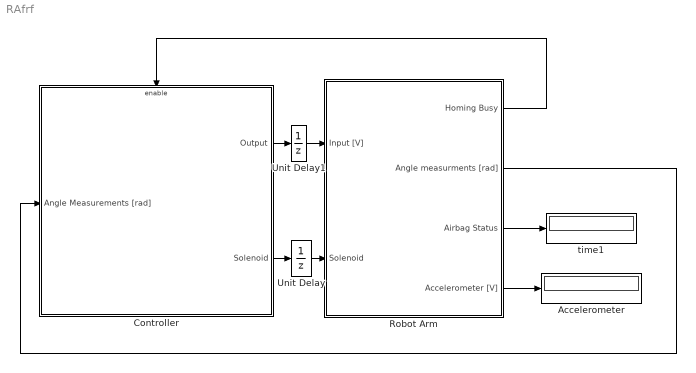
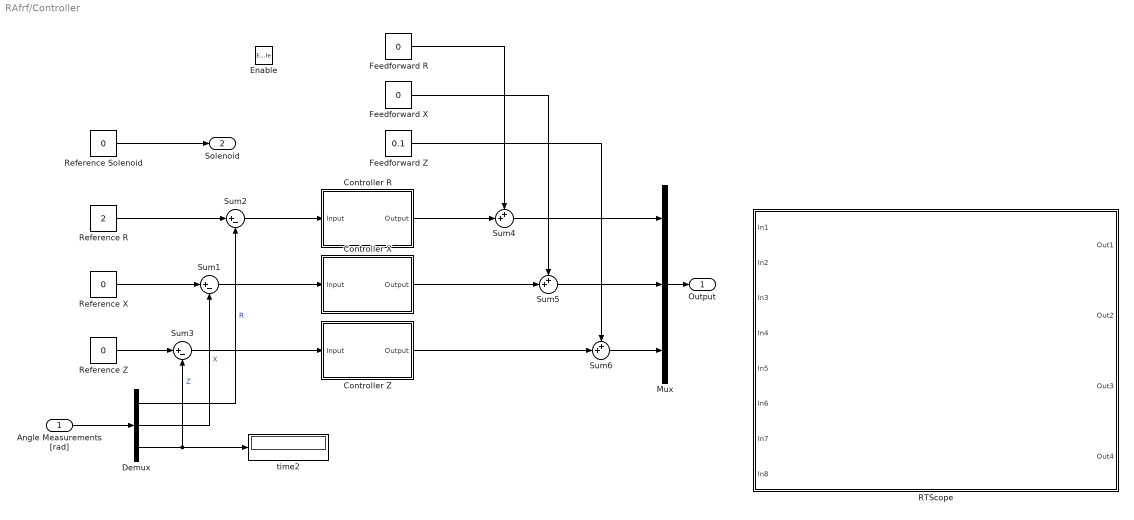
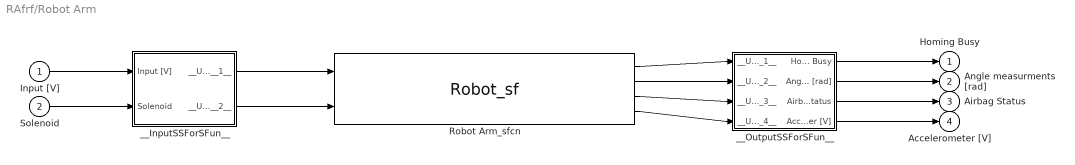
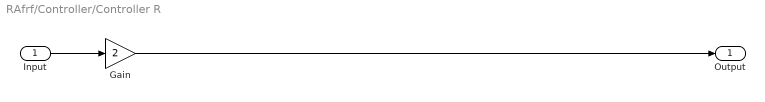
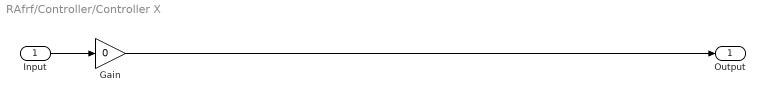
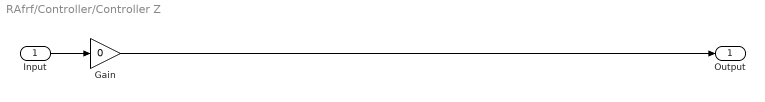
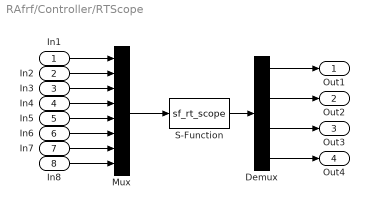
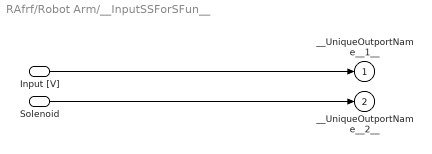
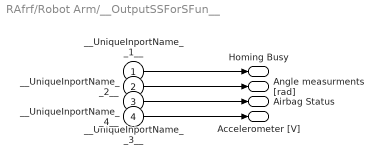
/*
 * RAfrf.c
 *
 * Academic License - for use in teaching, academic research, and meeting
 * course requirements at degree granting institutions only.  Not for
 * government, commercial, or other organizational use.
 *
 * Code generation for model "RAfrf".
 *
 * Model version              : 1.899
 * Simulink Coder version : 8.9 (R2015b) 13-Aug-2015
 * C source code generated on : Tue Mar 29 15:27:11 2016
 *
 * Target selection: ectarget.tlc
 * Note: GRT includes extra infrastructure and instrumentation for prototyping
 * Embedded hardware selection: 32-bit Generic
 * Code generation objectives: Unspecified
 * Validation result: Not run
 */

#include "RAfrf.h"
#include "RAfrf_private.h"
#include "RAfrf_dt.h"
#undef S_FUNCTION_NAME
#if !defined(RTW_GENERATED_SFCN_TUNABLE_PRMS_Robot_sf)
#define RTW_GENERATED_SFCN_TUNABLE_PRMS_Robot_sf
#endif

#include "Robot_sf.h"

const real_T RAfrf_RGND = 0.0;         /* real_T ground */

/* Block signals (auto storage) */
B_RAfrf_T RAfrf_B;

/* Block states (auto storage) */
DW_RAfrf_T RAfrf_DW;

/* Real-time model */
RT_MODEL_RAfrf_T RAfrf_M_;
RT_MODEL_RAfrf_T *const RAfrf_M = &RAfrf_M_;

/* Model output function */
void RAfrf_output(void)
{
  /* Reset subsysRan breadcrumbs */
  srClearBC(RAfrf_DW.Controller_SubsysRanBC);

  /* UnitDelay: '<Root>/Unit Delay1' */
  RAfrf_B.UnitDelay1[0] = RAfrf_DW.UnitDelay1_DSTATE[0];
  RAfrf_B.UnitDelay1[1] = RAfrf_DW.UnitDelay1_DSTATE[1];
  RAfrf_B.UnitDelay1[2] = RAfrf_DW.UnitDelay1_DSTATE[2];

  /* UnitDelay: '<Root>/Unit Delay' */
  RAfrf_B.UnitDelay = RAfrf_DW.UnitDelay_DSTATE;

  /* RTW Generated Level2 S-Function Block: '<S2>/Robot Arm_sfcn' (Robot_sf) */
  {
    SimStruct *rts = RAfrf_M->childSfunctions[1];
    sfcnOutputs(rts, 0);
  }

  /* Outputs for Enabled SubSystem: '<Root>/Controller' incorporates:
   *  EnablePort: '<S1>/Enable'
   */
  if (RAfrf_B.RobotArm_sfcn_o1 > 0.0) {
    if (!RAfrf_DW.Controller_MODE) {
      RAfrf_DW.Controller_MODE = true;
    }
  } else {
    if (RAfrf_DW.Controller_MODE) {
      RAfrf_DW.Controller_MODE = false;
    }
  }

  if (RAfrf_DW.Controller_MODE) {
    /* Sum: '<S1>/Sum4' incorporates:
     *  Constant: '<S1>/Feedforward R'
     *  Constant: '<S1>/Reference R'
     *  Gain: '<S3>/Gain'
     *  Sum: '<S1>/Sum2'
     */
    RAfrf_B.Sum4 = (RAfrf_P.ReferenceR_Value - RAfrf_B.RobotArm_sfcn_o2[0]) *
      RAfrf_P.Gain_Gain + RAfrf_P.FeedforwardR_Value;

    /* Sum: '<S1>/Sum5' incorporates:
     *  Constant: '<S1>/Feedforward X'
     *  Constant: '<S1>/Reference X'
     *  Gain: '<S4>/Gain'
     *  Sum: '<S1>/Sum1'
     */
    RAfrf_B.Sum5 = (RAfrf_P.ReferenceX_Value - RAfrf_B.RobotArm_sfcn_o2[1]) *
      RAfrf_P.Gain_Gain_e + RAfrf_P.FeedforwardX_Value;

    /* Sum: '<S1>/Sum6' incorporates:
     *  Constant: '<S1>/Feedforward Z'
     *  Constant: '<S1>/Reference Z'
     *  Gain: '<S5>/Gain'
     *  Sum: '<S1>/Sum3'
     */
    RAfrf_B.Sum6 = (RAfrf_P.ReferenceZ_Value - RAfrf_B.RobotArm_sfcn_o2[2]) *
      RAfrf_P.Gain_Gain_l + RAfrf_P.FeedforwardZ_Value;

    /* Constant: '<S1>/Reference Solenoid' */
    RAfrf_B.ReferenceSolenoid = RAfrf_P.ReferenceSolenoid_Value;

    /* Level2 S-Function Block: '<S6>/S-Function' (sf_rt_scope) */
    {
      SimStruct *rts = RAfrf_M->childSfunctions[0];
      sfcnOutputs(rts, 0);
    }

    srUpdateBC(RAfrf_DW.Controller_SubsysRanBC);
  }

  /* End of Outputs for SubSystem: '<Root>/Controller' */
}

/* Model update function */
void RAfrf_update(void)
{
  /* Update for UnitDelay: '<Root>/Unit Delay1' */
  RAfrf_DW.UnitDelay1_DSTATE[0] = RAfrf_B.Sum4;
  RAfrf_DW.UnitDelay1_DSTATE[1] = RAfrf_B.Sum5;
  RAfrf_DW.UnitDelay1_DSTATE[2] = RAfrf_B.Sum6;

  /* Update for UnitDelay: '<Root>/Unit Delay' */
  RAfrf_DW.UnitDelay_DSTATE = RAfrf_B.ReferenceSolenoid;

  /* RTW Generated Level2 S-Function Block: '<S2>/Robot Arm_sfcn' (Robot_sf) */
  {
    SimStruct *rts = RAfrf_M->childSfunctions[1];
    sfcnUpdate(rts, 0);
    if (ssGetErrorStatus(rts) != (NULL))
      return;
  }

  /* Update absolute time for base rate */
  /* The "clockTick0" counts the number of times the code of this task has
   * been executed. The absolute time is the multiplication of "clockTick0"
   * and "Timing.stepSize0". Size of "clockTick0" ensures timer will not
   * overflow during the application lifespan selected.
   * Timer of this task consists of two 32 bit unsigned integers.
   * The two integers represent the low bits Timing.clockTick0 and the high bits
   * Timing.clockTickH0. When the low bit overflows to 0, the high bits increment.
   */
  if (!(++RAfrf_M->Timing.clockTick0)) {
    ++RAfrf_M->Timing.clockTickH0;
  }

  RAfrf_M->Timing.t[0] = RAfrf_M->Timing.clockTick0 * RAfrf_M->Timing.stepSize0
    + RAfrf_M->Timing.clockTickH0 * RAfrf_M->Timing.stepSize0 * 4294967296.0;

  {
    /* Update absolute timer for sample time: [0.000244140625s, 0.0s] */
    /* The "clockTick1" counts the number of times the code of this task has
     * been executed. The absolute time is the multiplication of "clockTick1"
     * and "Timing.stepSize1". Size of "clockTick1" ensures timer will not
     * overflow during the application lifespan selected.
     * Timer of this task consists of two 32 bit unsigned integers.
     * The two integers represent the low bits Timing.clockTick1 and the high bits
     * Timing.clockTickH1. When the low bit overflows to 0, the high bits increment.
     */
    if (!(++RAfrf_M->Timing.clockTick1)) {
      ++RAfrf_M->Timing.clockTickH1;
    }

    RAfrf_M->Timing.t[1] = RAfrf_M->Timing.clockTick1 *
      RAfrf_M->Timing.stepSize1 + RAfrf_M->Timing.clockTickH1 *
      RAfrf_M->Timing.stepSize1 * 4294967296.0;
  }
}
